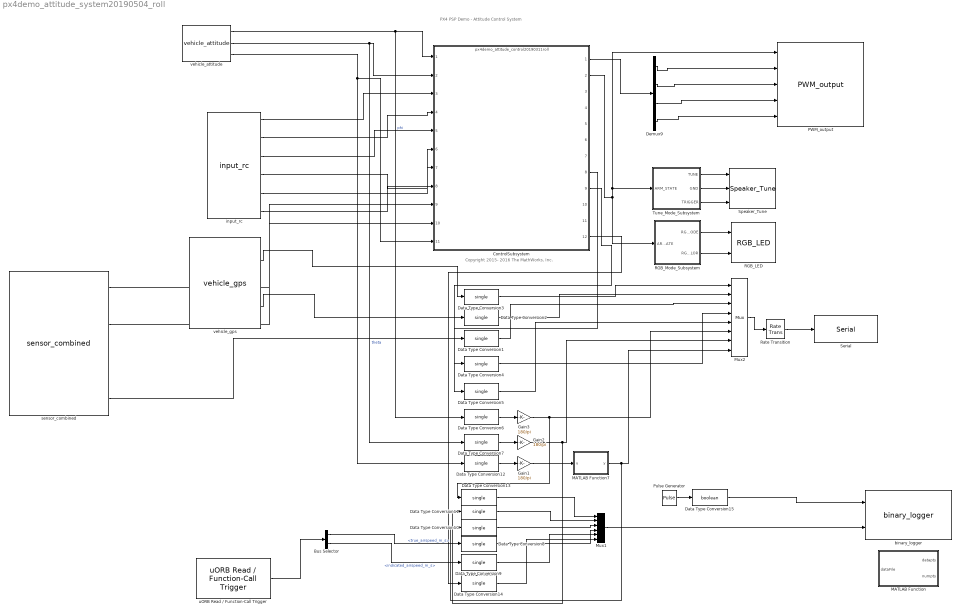
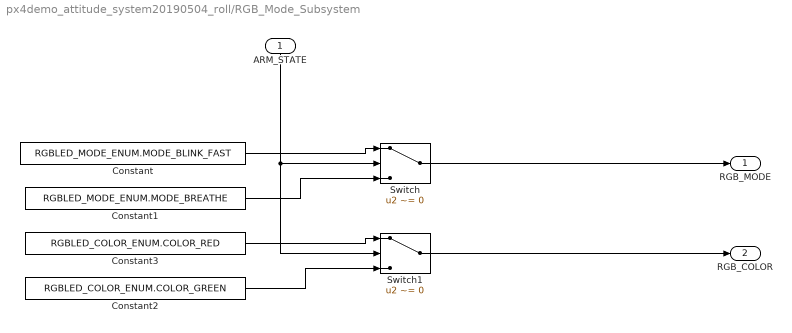
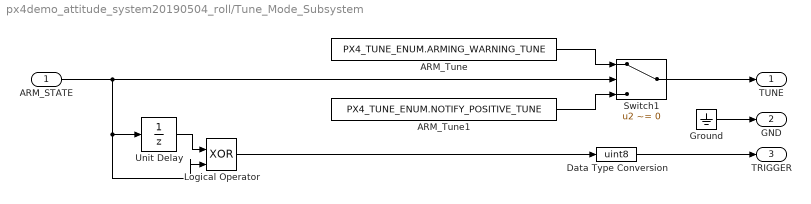
== matlab function px4demo_attitude_system20190504_roll/MATLAB Function ==
function [datapts, numpts] = px4_read_binary_file(dataFile)
%#codegen
persistent
    coder.cinclude('<stdio.h>');
    coder.cinclude('<time.h>');

== matlab function px4demo_attitude_system20190504_roll/MATLAB Function7 ==
function y = fcn(u)
if(u<=0)
    y=360+u;
else
    y=u
end

/*
 * Academic License - for use in teaching, academic research, and meeting
 * course requirements at degree granting institutions only.  Not for
 * government, commercial, or other organizational use.
 *
 * File: px4demo_attitude_system20190504_roll.c
 *
 * Code generated for Simulink model 'px4demo_attitude_system20190504_roll'.
 *
 * Model version                  : 1.185
 * Simulink Coder version         : 8.11 (R2016b) 25-Aug-2016
 * C/C++ source code generated on : Mon Jul 29 10:46:04 2019
 *
 * Target selection: ert.tlc
 * Embedded hardware selection: ARM Compatible->ARM Cortex
 * Code generation objectives: Unspecified
 * Validation result: Not run
 */

#include "px4demo_attitude_system20190504_roll.h"
#include "px4demo_attitude_system20190504_roll_private.h"
#define px4demo_attitude_system20_block (true)

const char *g_pwm_device = PWM_OUTPUT0_DEVICE_PATH;
int g_pwm_fd = -1;
bool g_pwm_enabled = false;
rtTimingBridge px4demo_attitude_sys_TimingBrdg;
const uint8_T px4demo_attitude_system20190504_roll_U8GND = 0U;/* uint8_T ground */

/* Block signals (auto storage) */
B_px4demo_attitude_system2019_T px4demo_attitude_system201905_B;

/* Block states (auto storage) */
DW_px4demo_attitude_system201_T px4demo_attitude_system20190_DW;

/* Real-time model */
RT_MODEL_px4demo_attitude_sys_T px4demo_attitude_system20190_M_;
RT_MODEL_px4demo_attitude_sys_T *const px4demo_attitude_system20190_M =
  &px4demo_attitude_system20190_M_;
static void rate_scheduler(void);

/*
 *   This function updates active task flag for each subrate.
 * The function is called at model base rate, hence the
 * generated code self-manages all its subrates.
 */
static void rate_scheduler(void)
{
  /* Compute which subrates run during the next base time step.  Subrates
   * are an integer multiple of the base rate counter.  Therefore, the subtask
   * counter is reset when it reaches its limit (zero means run).
   */
  (px4demo_attitude_system20190_M->Timing.TaskCounters.TID[1])++;
  if ((px4demo_attitude_system20190_M->Timing.TaskCounters.TID[1]) > 24) {/* Sample time: [0.1s, 0.0s] */
    px4demo_attitude_system20190_M->Timing.TaskCounters.TID[1] = 0;
  }

  (px4demo_attitude_system20190_M->Timing.TaskCounters.TID[2])++;
  if ((px4demo_attitude_system20190_M->Timing.TaskCounters.TID[2]) > 74) {/* Sample time: [0.3s, 0.0s] */
    px4demo_attitude_system20190_M->Timing.TaskCounters.TID[2] = 0;
  }

  (px4demo_attitude_system20190_M->Timing.TaskCounters.TID[3])++;
  if ((px4demo_attitude_system20190_M->Timing.TaskCounters.TID[3]) > 124) {/* Sample time: [0.5s, 0.0s] */
    px4demo_attitude_system20190_M->Timing.TaskCounters.TID[3] = 0;
  }

  (px4demo_attitude_system20190_M->Timing.TaskCounters.TID[4])++;
  if ((px4demo_attitude_system20190_M->Timing.TaskCounters.TID[4]) > 2499) {/* Sample time: [10.0s, 0.0s] */
    px4demo_attitude_system20190_M->Timing.TaskCounters.TID[4] = 0;
  }
}

/* Model step function */
void px4demo_attitude_system20190504_roll_step(void)
{
  static const char_T mlStrVer[8] = { 'M', 'W', 'L', 'O', 'G', 'V', '0', '1' };

  static const char_T b[28] = { 'C', 'L', 'O', 'S', 'I', 'N', 'G', ' ', 'f', 'i',
    'l', 'e', '.', ' ', 'c', 'o', 'u', 'n', 't', ' ', '=', ' ', '%', 'd', ' ',
    '%', 'c', '\x00' };

  static const char_T c[56] = { 'O', 'P', 'E', 'N', 'I', 'N', 'G', ' ', 'f', 'i',
    'l', 'e', ' ', '%', 's', ' ', 'v', 'e', 'c', 't', '_', 's', 'i', 'z', 'e',
    ' ', '%', 'd', ' ', 'e', 'l', 'e', 'm', '_', 's', 'i', 'z', 'e', ' ', '%',
    'd', ' ', 'n', 'u', 'm', 'R', 'e', 'c', 's', ' ', '%', 'd', ' ', '%', 'c',
    '\x00' };

  static const char_T e[15] = { '/', 'f', 's', '/', 'm', 'i', 'c', 'r', 'o', 's',
    'd', '/', 'l', 'o', 'g' };

  /* S-Function (sfun_px4_vehicle_attitude): '<Root>/vehicle_attitude' */
  {
    bool updated;
    orb_check(px4demo_attitude_system20190_DW.vehicle_attitude_vehicle_attitu.fd,
              &updated);
    if (updated) {
      struct vehicle_attitude_s raw;
      orb_copy(ORB_ID(vehicle_attitude),
               px4demo_attitude_system20190_DW.vehicle_attitude_vehicle_attitu.fd,
               &raw);

      /* read out the Roll value */
      px4demo_attitude_system201905_B.phi = raw.roll;// phi

      /* read out the Pitch value */
      px4demo_attitude_system201905_B.theta = raw.pitch;// theta

      /* read out the Yaw value */
      px4demo_attitude_system201905_B.vehicle_attitude_o3 = raw.yaw;// psi
    }
  }

  /* S-Function (sfun_px4_input_rc): '<Root>/input_rc' */
  {
    bool updated;
    orb_check(px4demo_attitude_system20190_DW.input_rc_input_rc_fd.fd, &updated);
    if (updated) {
      struct rc_input_values pwm_inputs;

      /* copy input_rc raw data into local buffer (uint16)*/
      orb_copy(ORB_ID(input_rc),
               px4demo_attitude_system20190_DW.input_rc_input_rc_fd.fd,
               &pwm_inputs);
      px4demo_attitude_system201905_B.input_rc_o1 = pwm_inputs.values[0];
      px4demo_attitude_system201905_B.input_rc_o2 = pwm_inputs.values[1];
      px4demo_attitude_system201905_B.input_rc_o3 = pwm_inputs.values[2];
      px4demo_attitude_system201905_B.input_rc_o4 = pwm_inputs.values[3];
      px4demo_attitude_system201905_B.input_rc_o5 = pwm_inputs.values[4];
      px4demo_attitude_system201905_B.input_rc_o6 = pwm_inputs.values[5];
    }
  }

  /* S-Function (sfun_px4_sensor_combined): '<Root>/sensor_combined' */
  {
    bool updated;
    orb_check(px4demo_attitude_system20190_DW.sensor_combined_sensor_fd.fd,
              &updated);
    if (updated) {
      /* obtained data sensor combined */
      struct sensor_combined_s raw;

      /* copy sensors raw data into local buffer */
      orb_copy(ORB_ID(sensor_combined),
               px4demo_attitude_system20190_DW.sensor_combined_sensor_fd.fd,
               &raw);

      /* read out the gyro X,Y,Z */
      px4demo_attitude_system201905_B.sensor_combined_o1 = (float)
        raw.gyro_rad_s[0];
      px4demo_attitude_system201905_B.sensor_combined_o2 = (float)
        raw.gyro_rad_s[1];
      px4demo_attitude_system201905_B.sensor_combined_o3 = (float)
        raw.gyro_rad_s[2];

      /* read out the baro altimeter */
      px4demo_attitude_system201905_B.sensor_combined_o4 = (float)
        raw.baro_alt_meter[0];
    }
  }

  /* ModelReference: '<Root>/ControlSubsystem' */
  px4demo_attitude_control2019031(&px4demo_attitude_system201905_B.phi,
    &px4demo_attitude_system201905_B.theta,
    &px4demo_attitude_system201905_B.input_rc_o1,
    &px4demo_attitude_system201905_B.input_rc_o2,
    &px4demo_attitude_system201905_B.input_rc_o3,
    &px4demo_attitude_system201905_B.input_rc_o4,
    &px4demo_attitude_system201905_B.input_rc_o5,
    &px4demo_attitude_system201905_B.input_rc_o6,
    &px4demo_attitude_system201905_B.sensor_combined_o1,
    &px4demo_attitude_system201905_B.sensor_combined_o2,
    &px4demo_attitude_system201905_B.ControlSubsystem_o1[0],
    &px4demo_attitude_system201905_B.ControlSubsystem_o2,
    &px4demo_attitude_system201905_B.ControlSubsystem_o10,
    &px4demo_attitude_system201905_B.ControlSubsystem_o11,
    &px4demo_attitude_system201905_B.ControlSubsystem_o12,
    &(px4demo_attitude_system20190_DW.ControlSubsystem_DWORK1.rtb),
    &(px4demo_attitude_system20190_DW.ControlSubsystem_DWORK1.rtdw));

  /* S-Function (sfun_px4_pwm): '<Root>/PWM_output' */
  if (px4demo_attitude_system201905_B.ControlSubsystem_o2 == true) {
    if (g_pwm_enabled == false) {
      int rc;

      /* arm system */
      rc = ioctl(g_pwm_fd, PWM_SERVO_ARM, 0);
      if (rc != OK)
        err(1,"PWM_SERVO_ARM");
      else {
        ioctl(g_pwm_fd, PWM_SERVO_SET(0), 900);
        ioctl(g_pwm_fd, PWM_SERVO_SET(1), 900);
        ioctl(g_pwm_fd, PWM_SERVO_SET(2), 900);
        ioctl(g_pwm_fd, PWM_SERVO_SET(3), 900);
        g_pwm_enabled = true;
        printf("***ARMED*** PWM fd = %d\n", g_pwm_fd);
      }
    }
  } else {
    if (g_pwm_enabled == true) {
      int rc;

      /* disarm system if enabled */
      ioctl(g_pwm_fd, PWM_SERVO_SET(0), 900);
      ioctl(g_pwm_fd, PWM_SERVO_SET(1), 900);
      ioctl(g_pwm_fd, PWM_SERVO_SET(2), 900);
      ioctl(g_pwm_fd, PWM_SERVO_SET(3), 900);
      rc = ioctl(g_pwm_fd, PWM_SERVO_DISARM, 0);
      g_pwm_enabled = false;
      if (rc != OK)
        err(1, "PWM_SERVO_DISARM");
      else
        printf("***DISARMED*** PWM fd = %d\n", g_pwm_fd);
    }
  }

  if (g_pwm_enabled) {
    /* output the PWM signals */
    ioctl(g_pwm_fd, PWM_SERVO_SET(0), (unsigned int)
          px4demo_attitude_system201905_B.ControlSubsystem_o1[0]);
    ioctl(g_pwm_fd, PWM_SERVO_SET(1), (unsigned int)
          px4demo_attitude_system201905_B.ControlSubsystem_o1[1]);
    ioctl(g_pwm_fd, PWM_SERVO_SET(2), (unsigned int)
          px4demo_attitude_system201905_B.ControlSubsystem_o1[2]);
    ioctl(g_pwm_fd, PWM_SERVO_SET(3), (unsigned int)
          px4demo_attitude_system201905_B.ControlSubsystem_o1[3]);
  }

  if (px4demo_attitude_system20190_M->Timing.TaskCounters.TID[3] == 0) {
    /* Switch: '<S2>/Switch' incorporates:
     *  Constant: '<S2>/Constant'
     *  Constant: '<S2>/Constant1'
     *  Constant: '<S2>/Constant2'
     *  Constant: '<S2>/Constant3'
     *  Switch: '<S2>/Switch1'
     */
    if (px4demo_attitude_system201905_B.ControlSubsystem_o2) {
      px4demo_attitude_system201905_B.Switch = MODE_BLINK_FAST;
      px4demo_attitude_system201905_B.Switch1 = COLOR_RED;
    } else {
      px4demo_attitude_system201905_B.Switch = MODE_BREATHE;
      px4demo_attitude_system201905_B.Switch1 = COLOR_GREEN;
    }

    /* End of Switch: '<S2>/Switch' */

    /* S-Function (sfun_px4_rgbled): '<Root>/RGB_LED' */
    ioctl(px4demo_attitude_system20190_DW.RGB_LED_rgbled_fd, RGBLED_SET_MODE,
          px4demo_attitude_system201905_B.Switch);
    ioctl(px4demo_attitude_system20190_DW.RGB_LED_rgbled_fd, RGBLED_SET_COLOR,
          px4demo_attitude_system201905_B.Switch1);
  }

  /* S-Function (sfun_px4_gps): '<Root>/vehicle_gps' */
  {
    int poll_ret;
    bool updated;
    orb_check(px4demo_attitude_system20190_DW.vehicle_gps_gps_fd.fd, &updated);
    if (updated) {
      /* obtained GPS data */
      struct vehicle_gps_position_s raw;

      /* copy sensors raw data into local buffer */
      orb_copy(ORB_ID(vehicle_gps_position),
               px4demo_attitude_system20190_DW.vehicle_gps_gps_fd.fd, &raw);

      /* read out Lat/Lon Values */
      px4demo_attitude_system201905_B.vehicle_gps_o1 = raw.lat;
      px4demo_attitude_system201905_B.vehicle_gps_o2 = raw.lon;
    }
  }

  /* Gain: '<Root>/Gain3' */
  px4demo_attitude_system201905_B.Gain3 = 57.2957802F *
    px4demo_attitude_system201905_B.phi;

  /* Gain: '<Root>/Gain2' */
  px4demo_attitude_system201905_B.Gain2 = 57.2957802F *
    px4demo_attitude_system201905_B.theta;

  /* Gain: '<Root>/Gain1' */
  px4demo_attitude_system201905_B.Gain1 = 57.2957802F *
    px4demo_attitude_system201905_B.vehicle_attitude_o3;

  /* MATLAB Function: '<Root>/MATLAB Function7' */
  /* MATLAB Function 'MATLAB Function7': '<S1>:1' */
  if (px4demo_attitude_system201905_B.Gain1 <= 0.0F) {
    /* '<S1>:1:2' */
    /* '<S1>:1:3' */
    px4demo_attitude_system201905_B.Gain1 += 360.0F;
  } else {
    /* '<S1>:1:5' */
  }

  /* End of MATLAB Function: '<Root>/MATLAB Function7' */

  /* RateTransition: '<Root>/Rate Transition' incorporates:
   *  DataTypeConversion: '<Root>/Data Type Conversion2'
   *  DataTypeConversion: '<Root>/Data Type Conversion3'
   */
  if (px4demo_attitude_system20190_M->Timing.TaskCounters.TID[2] == 0) {
    px4demo_attitude_system201905_B.RateTransition_m[0] = (real32_T)
      px4demo_attitude_system201905_B.vehicle_gps_o1;
    px4demo_attitude_system201905_B.RateTransition_m[1] = (real32_T)
      px4demo_attitude_system201905_B.vehicle_gps_o2;
    px4demo_attitude_system201905_B.RateTransition_m[2] =
      px4demo_attitude_system201905_B.sensor_combined_o4;
    px4demo_attitude_system201905_B.RateTransition_m[3] =
      px4demo_attitude_system2_ConstB.DataTypeConversion4;
    px4demo_attitude_system201905_B.RateTransition_m[4] =
      px4demo_attitude_system2_ConstB.DataTypeConversion5;
    px4demo_attitude_system201905_B.RateTransition_m[5] =
      px4demo_attitude_system201905_B.Gain3;
    px4demo_attitude_system201905_B.RateTransition_m[6] =
      px4demo_attitude_system201905_B.Gain2;
    px4demo_attitude_system201905_B.RateTransition_m[7] =
      px4demo_attitude_system201905_B.Gain1;

    /* Start for MATLABSystem: '<Root>/Serial' incorporates:
     *  DataTypeConversion: '<Root>/Data Type Conversion2'
     *  DataTypeConversion: '<Root>/Data Type Conversion3'
     *  MATLABSystem: '<Root>/Serial'
     */
    MW_writeSerial(px4demo_attitude_system20190_DW.obj.fh_index,
                   px4demo_attitude_system201905_B.RateTransition_m, 32U);
  }

  /* End of RateTransition: '<Root>/Rate Transition' */

  /* Switch: '<S3>/Switch1' incorporates:
   *  Constant: '<S3>/ARM_Tune'
   *  Constant: '<S3>/ARM_Tune1'
   */
  if (px4demo_attitude_system201905_B.ControlSubsystem_o2) {
    px4demo_attitude_system201905_B.Switch1_i = ARMING_WARNING_TUNE;
  } else {
    px4demo_attitude_system201905_B.Switch1_i = NOTIFY_POSITIVE_TUNE;
  }

  /* End of Switch: '<S3>/Switch1' */

  /* DataTypeConversion: '<S3>/Data Type Conversion' incorporates:
   *  Logic: '<S3>/Logical Operator'
   *  UnitDelay: '<S3>/Unit Delay'
   */
  px4demo_attitude_system201905_B.DataTypeConversion = (uint8_T)((int8_T)
    px4demo_attitude_system20190_DW.UnitDelay_DSTATE ^ (int8_T)
    px4demo_attitude_system201905_B.ControlSubsystem_o2);

  /* S-Function (sfun_px4_tune): '<Root>/Speaker_Tune' */
  if (px4demo_attitude_system20190_DW.Speaker_Tune_tune_fd == -1) {
    px4demo_attitude_system20190_DW.Speaker_Tune_tune_fd = open
      (TONEALARM0_DEVICE_PATH, O_WRONLY);
    if ((px4demo_attitude_system201905_B.DataTypeConversion > 0) &&
        (px4demo_attitude_system201905_B.DataTypeConversion !=
         px4demo_attitude_system20190_DW.Speaker_Tune_triggerState)) {
      if (px4demo_attitude_system201905_B.DataTypeConversion == 1) {
        ioctl(px4demo_attitude_system20190_DW.Speaker_Tune_tune_fd,
              TONE_SET_ALARM, px4demo_attitude_system201905_B.Switch1_i);
      } else if (px4demo_attitude_system201905_B.DataTypeConversion == 2) {
        write(px4demo_attitude_system20190_DW.Speaker_Tune_tune_fd, (uint8_T*)
              &px4demo_attitude_system20190504_roll_U8GND, 1);
      }
    }

    // save the state of the trigger
    px4demo_attitude_system20190_DW.Speaker_Tune_triggerState =
      px4demo_attitude_system201905_B.DataTypeConversion;
  } else {
    if ((px4demo_attitude_system201905_B.DataTypeConversion > 0) &&
        (px4demo_attitude_system201905_B.DataTypeConversion !=
         px4demo_attitude_system20190_DW.Speaker_Tune_triggerState)) {
      if (px4demo_attitude_system201905_B.DataTypeConversion == 1) {
        ioctl(px4demo_attitude_system20190_DW.Speaker_Tune_tune_fd,
              TONE_SET_ALARM, px4demo_attitude_system201905_B.Switch1_i);
      } else if (px4demo_attitude_system201905_B.DataTypeConversion == 2) {
        write(px4demo_attitude_system20190_DW.Speaker_Tune_tune_fd, (uint8_T*)
              &px4demo_attitude_system20190504_roll_U8GND, 1);
      }
    }

    // save the state of the trigger
    px4demo_attitude_system20190_DW.Speaker_Tune_triggerState =
      px4demo_attitude_system201905_B.DataTypeConversion;
  }

  if (px4demo_attitude_system20190_M->Timing.TaskCounters.TID[4] == 0) {
    /* DiscretePulseGenerator: '<Root>/Pulse Generator' */
    px4demo_attitude_system201905_B.PulseGenerator =
      ((px4demo_attitude_system20190_DW.clockTickCounter < 5) &&
       (px4demo_attitude_system20190_DW.clockTickCounter >= 0));
    if (px4demo_attitude_system20190_DW.clockTickCounter >= 9) {
      px4demo_attitude_system20190_DW.clockTickCounter = 0;
    } else {
      px4demo_attitude_system20190_DW.clockTickCounter++;
    }

    /* End of DiscretePulseGenerator: '<Root>/Pulse Generator' */

    /* DataTypeConversion: '<Root>/Data Type Conversion15' */
    px4demo_attitude_system201905_B.DataTypeConversion15 =
      (px4demo_attitude_system201905_B.PulseGenerator != 0);
  }

  /* SignalConversion: '<S5>/TmpSignal ConversionAt SFunction Inport2' incorporates:
   *  DataTypeConversion: '<Root>/Data Type Conversion14'
   *  MATLAB Function: '<S4>/binary_logger1'
   */
  px4demo_attitude_system201905_B.TmpSignalConversionAtSFunct[0] =
    px4demo_attitude_system201905_B.Gain3;
  px4demo_attitude_system201905_B.TmpSignalConversionAtSFunct[1] =
    px4demo_attitude_system201905_B.Gain2;
  px4demo_attitude_system201905_B.TmpSignalConversionAtSFunct[2] =
    px4demo_attitude_system201905_B.Gain1;
  px4demo_attitude_system201905_B.TmpSignalConversionAtSFunct[3] = 0.0F;
  px4demo_attitude_system201905_B.TmpSignalConversionAtSFunct[4] = 0.0F;
  px4demo_attitude_system201905_B.TmpSignalConversionAtSFunct[5] =
    px4demo_attitude_system201905_B.ControlSubsystem_o12;

  /* MATLAB Function: '<S4>/binary_logger1' */
  /* MATLAB Function 'binary_logger/binary_logger1': '<S5>:1' */
  /* '<S5>:1:39' */
  /* '<S5>:1:87' */
  /* '<S5>:1:47' */
  /* '<S5>:1:40' */
  /* '<S5>:1:39' */
  /* '<S5>:1:38' */
  /*  Binary Logger */
  /*  Note: All data needs to be of the same type (e.g. double) */
  /*  Header information format: */
  /*            String "MWLOGV##" */
  /*            Time/Date 4 bytes (time()) */
  /*            Number of Signals per record Logged 1 byte (256 max) */
  /*            Data Type of Signals Logged  1 byte (1-10) */
  /*            Number of bytes per record 2 bytes (65535 max) */
  /*  This does NOT include the number of data sets logged.   */
  /*  i.e. The Reader is responsible for reading until EOF. */
  /*  MathWorks Pilot Engineering 2015 */
  /*  Steve Kuznicki */
  if (px4demo_attitude_system201905_B.DataTypeConversion15) {
    /* '<S5>:1:32' */
    if (!px4demo_attitude_system20190_DW.isopen) {
      /* '<S5>:1:33' */
      /* '<S5>:1:35' */
      px4demo_attitude_system20190_DW.elem_size = 4U;

      /* '<S5>:1:36' */
      px4demo_attitude_system201905_B.elem_type = 2U;

      /* '<S5>:1:37' */
      px4demo_attitude_system20190_DW.vect_size = 6U;
      for (px4demo_attitude_system201905_B.PulseGenerator = 0;
           px4demo_attitude_system201905_B.PulseGenerator < 56;
           px4demo_attitude_system201905_B.PulseGenerator++) {
        px4demo_attitude_system201905_B.c[px4demo_attitude_system201905_B.PulseGenerator]
          = c[px4demo_attitude_system201905_B.PulseGenerator];
      }

      for (px4demo_attitude_system201905_B.PulseGenerator = 0;
           px4demo_attitude_system201905_B.PulseGenerator < 15;
           px4demo_attitude_system201905_B.PulseGenerator++) {
        px4demo_attitude_system201905_B.e[px4demo_attitude_system201905_B.PulseGenerator]
          = e[px4demo_attitude_system201905_B.PulseGenerator];
      }

      px4demo_attitude_system201905_B.e[15] = '_';
      px4demo_attitude_system201905_B.e[16] = (char_T)
        px4demo_attitude_system20190_DW.lognumstr;
      px4demo_attitude_system201905_B.e[17] = '.';
      px4demo_attitude_system201905_B.e[18] = 'b';
      px4demo_attitude_system201905_B.e[19] = 'i';
      px4demo_attitude_system201905_B.e[20] = 'n';
      px4demo_attitude_system201905_B.e[21] = '\x00';
      printf(px4demo_attitude_system201905_B.c,
             px4demo_attitude_system201905_B.e, (uint32_T)
             px4demo_attitude_system20190_DW.vect_size, (uint32_T)
             px4demo_attitude_system20190_DW.elem_size, 1000U, 10U);

      /* '<S5>:1:40' */
      for (px4demo_attitude_system201905_B.PulseGenerator = 0;
           px4demo_attitude_system201905_B.PulseGenerator < 15;
           px4demo_attitude_system201905_B.PulseGenerator++) {
        px4demo_attitude_system201905_B.e[px4demo_attitude_system201905_B.PulseGenerator]
          = e[px4demo_attitude_system201905_B.PulseGenerator];
      }

      px4demo_attitude_system201905_B.e[15] = '_';
      px4demo_attitude_system201905_B.e[16] = (char_T)
        px4demo_attitude_system20190_DW.lognumstr;
      px4demo_attitude_system201905_B.e[17] = '.';
      px4demo_attitude_system201905_B.e[18] = 'b';
      px4demo_attitude_system201905_B.e[19] = 'i';
      px4demo_attitude_system201905_B.e[20] = 'n';
      px4demo_attitude_system201905_B.e[21] = '\x00';
      px4demo_attitude_system201905_B.d[0] = 'w';
      px4demo_attitude_system201905_B.d[1] = 'b';
      px4demo_attitude_system201905_B.d[2] = '\x00';
      px4demo_attitude_system20190_DW.fp = fopen
        (px4demo_attitude_system201905_B.e, px4demo_attitude_system201905_B.d);

      /* '<S5>:1:41' */
      px4demo_attitude_system20190_DW.lognumstr++;

      /* '<S5>:1:42' */
      px4demo_attitude_system20190_DW.isflushed = false;

      /* '<S5>:1:43' */
      px4demo_attitude_system20190_DW.count = 0U;

      /* '<S5>:1:44' */
      px4demo_attitude_system20190_DW.isopen = true;

      /*  Write header information here */
      /*  header token + version */
      /* '<S5>:1:47' */
      fwrite(mlStrVer, 1U, 8.0, px4demo_attitude_system20190_DW.fp);

      /*  date/time */
      /* '<S5>:1:52' */
      px4demo_attitude_system201905_B.tm = time
        (&px4demo_attitude_system201905_B.tmptr);
      fwrite(&px4demo_attitude_system201905_B.tm, 4U, 1U,
             px4demo_attitude_system20190_DW.fp);

      /*  number of elements in each record */
      fwrite(&px4demo_attitude_system20190_DW.vect_size, 1U, 1U,
             px4demo_attitude_system20190_DW.fp);

      /*  data type of the elements */
      fwrite(&px4demo_attitude_system201905_B.elem_type, 1U, 1U,
             px4demo_attitude_system20190_DW.fp);

      /*  size of each record in bytes */
      /* '<S5>:1:59' */
      px4demo_attitude_system201905_B.tmptr = (uint32_T)
        px4demo_attitude_system20190_DW.elem_size *
        px4demo_attitude_system20190_DW.vect_size;
      if (px4demo_attitude_system201905_B.tmptr > 65535U) {
        px4demo_attitude_system201905_B.tmptr = 65535U;
      }

      px4demo_attitude_system201905_B.recSize = (uint16_T)
        px4demo_attitude_system201905_B.tmptr;
      fwrite(&px4demo_attitude_system201905_B.recSize, 2U, 1U,
             px4demo_attitude_system20190_DW.fp);
    }

    /*  cache data in memory or use fwrite */
    fwrite(px4demo_attitude_system201905_B.TmpSignalConversionAtSFunct,
           px4demo_attitude_system20190_DW.elem_size,
           px4demo_attitude_system20190_DW.vect_size,
           px4demo_attitude_system20190_DW.fp);

    /* '<S5>:1:72' */
    px4demo_attitude_system201905_B.tmptr =
      px4demo_attitude_system20190_DW.count + 1U;
    if (px4demo_attitude_system201905_B.tmptr <
        px4demo_attitude_system20190_DW.count) {
      px4demo_attitude_system201905_B.tmptr = MAX_uint32_T;
    }

    px4demo_attitude_system20190_DW.count =
      px4demo_attitude_system201905_B.tmptr;

    /*  check for data count limit */
    if (px4demo_attitude_system20190_DW.count >= 1000U) {
      /* '<S5>:1:74' */
      fflush(px4demo_attitude_system20190_DW.fp);

      /* '<S5>:1:81' */
      px4demo_attitude_system20190_DW.isflushed = false;

      /* '<S5>:1:82' */
      px4demo_attitude_system20190_DW.count = 0U;
    }
  } else {
    if (px4demo_attitude_system20190_DW.isopen) {
      /* '<S5>:1:85' */
      if (!px4demo_attitude_system20190_DW.isflushed) {
        /* '<S5>:1:86' */
        for (px4demo_attitude_system201905_B.PulseGenerator = 0;
             px4demo_attitude_system201905_B.PulseGenerator < 28;
             px4demo_attitude_system201905_B.PulseGenerator++) {
          px4demo_attitude_system201905_B.b[px4demo_attitude_system201905_B.PulseGenerator]
            = b[px4demo_attitude_system201905_B.PulseGenerator];
        }

        printf(px4demo_attitude_system201905_B.b,
               px4demo_attitude_system20190_DW.count, 10U);
        fflush(px4demo_attitude_system20190_DW.fp);

        /* '<S5>:1:95' */
        px4demo_attitude_system20190_DW.isflushed = true;
      }

      fclose(px4demo_attitude_system20190_DW.fp);
    }

    /* '<S5>:1:99' */
    px4demo_attitude_system20190_DW.isopen = false;

    /* '<S5>:1:100' */
    px4demo_attitude_system20190_DW.count = 0U;
  }

  /* Update for UnitDelay: '<S3>/Unit Delay' */
  px4demo_attitude_system20190_DW.UnitDelay_DSTATE =
    px4demo_attitude_system201905_B.ControlSubsystem_o2;
  rate_scheduler();
}
